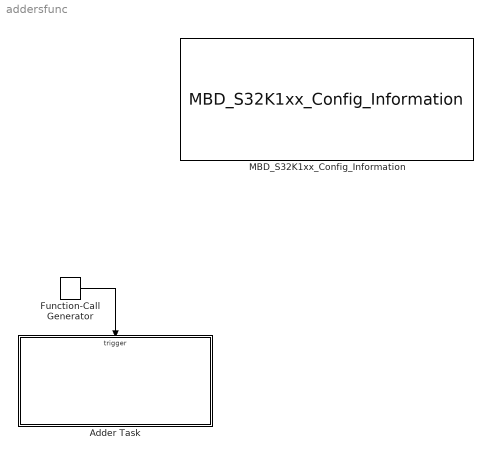
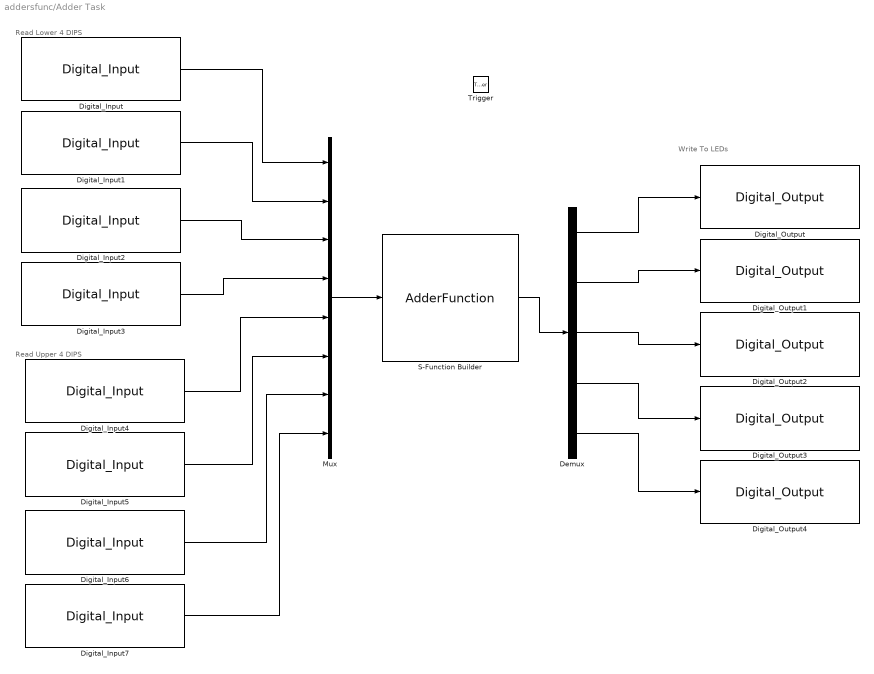
/*
 * Academic License - for use in teaching, academic research, and meeting
 * course requirements at degree granting institutions only.  Not for
 * government, commercial, or other organizational use.
 *
 * File: addersfunc.c
 *
 * Code generated for Simulink model 'addersfunc'.
 *
 * Model version                   : 1.8
 * Simulink Coder version          : 9.3 (R2020a) 18-Nov-2019
 * MBDT for S32K1xx Series Version : 4.1.0 (R2017b-R2019a) 22-Jul-2019
 * C/C++ source code generated on  : Wed Sep 18 11:34:13 2024
 *
 * Target selection: mbd_s32k.tlc
 * Embedded hardware selection: ARM Compatible->ARM Cortex
 * Code generation objective: Traceability
 * Validation result: Not run
 */

#include "addersfunc.h"
#include "addersfunc_private.h"

/* Block signals (default storage) */
B_addersfunc_T addersfunc_B;

/* Real-time model */
RT_MODEL_addersfunc_T addersfunc_M_;
RT_MODEL_addersfunc_T *const addersfunc_M = &addersfunc_M_;

/* Model step function */
void addersfunc_step(void)
{
  /* S-Function (fcncallgen): '<Root>/Function-Call Generator' incorporates:
   *  SubSystem: '<Root>/Adder Task'
   */
  /* S-Function (gpio_s32k_input): '<S1>/Digital_Input' */

  /* GPIPORTE6 signal update */
  addersfunc_B.Digital_Input = (PINS_DRV_ReadPins(PTE) >> 6) & 0x01;

  /* S-Function (gpio_s32k_input): '<S1>/Digital_Input1' */

  /* GPIPORTE7 signal update */
  addersfunc_B.Digital_Input1 = (PINS_DRV_ReadPins(PTE) >> 7) & 0x01;

  /* S-Function (gpio_s32k_input): '<S1>/Digital_Input2' */

  /* GPIPORTE8 signal update */
  addersfunc_B.Digital_Input2 = (PINS_DRV_ReadPins(PTE) >> 8) & 0x01;

  /* S-Function (gpio_s32k_input): '<S1>/Digital_Input3' */

  /* GPIPORTE9 signal update */
  addersfunc_B.Digital_Input3 = (PINS_DRV_ReadPins(PTE) >> 9) & 0x01;

  /* S-Function (gpio_s32k_input): '<S1>/Digital_Input4' */

  /* GPIPORTE10 signal update */
  addersfunc_B.Digital_Input4 = (PINS_DRV_ReadPins(PTE) >> 10) & 0x01;

  /* S-Function (gpio_s32k_input): '<S1>/Digital_Input5' */

  /* GPIPORTE11 signal update */
  addersfunc_B.Digital_Input5 = (PINS_DRV_ReadPins(PTE) >> 11) & 0x01;

  /* S-Function (gpio_s32k_input): '<S1>/Digital_Input6' */

  /* GPIPORTE12 signal update */
  addersfunc_B.Digital_Input6 = (PINS_DRV_ReadPins(PTE) >> 12) & 0x01;

  /* S-Function (gpio_s32k_input): '<S1>/Digital_Input7' */

  /* GPIPORTE13 signal update */
  addersfunc_B.Digital_Input7 = (PINS_DRV_ReadPins(PTE) >> 13) & 0x01;

  /* SignalConversion generated from: '<S1>/S-Function Builder' */
  addersfunc_B.TmpSignalConversionAtSFunctionB[0] = addersfunc_B.Digital_Input;
  addersfunc_B.TmpSignalConversionAtSFunctionB[1] = addersfunc_B.Digital_Input1;
  addersfunc_B.TmpSignalConversionAtSFunctionB[2] = addersfunc_B.Digital_Input2;
  addersfunc_B.TmpSignalConversionAtSFunctionB[3] = addersfunc_B.Digital_Input3;
  addersfunc_B.TmpSignalConversionAtSFunctionB[4] = addersfunc_B.Digital_Input4;
  addersfunc_B.TmpSignalConversionAtSFunctionB[5] = addersfunc_B.Digital_Input5;
  addersfunc_B.TmpSignalConversionAtSFunctionB[6] = addersfunc_B.Digital_Input6;
  addersfunc_B.TmpSignalConversionAtSFunctionB[7] = addersfunc_B.Digital_Input7;

  /* S-Function (AdderFunction): '<S1>/S-Function Builder' */
  AdderFunction_Outputs_wrapper(&addersfunc_B.TmpSignalConversionAtSFunctionB[0],
    &addersfunc_B.SFunctionBuilder[0]);

  /* S-Function (gpio_s32k_output): '<S1>/Digital_Output' */

  /* GPOPORTD0 Data Signal Update */
  if (addersfunc_B.SFunctionBuilder[0]) {
    PINS_DRV_SetPins(PTD, 1UL<<0);
  } else {
    PINS_DRV_ClearPins(PTD, 1UL<<0);
  }

  /* S-Function (gpio_s32k_output): '<S1>/Digital_Output1' */

  /* GPOPORTD1 Data Signal Update */
  if (addersfunc_B.SFunctionBuilder[1]) {
    PINS_DRV_SetPins(PTD, 1UL<<1);
  } else {
    PINS_DRV_ClearPins(PTD, 1UL<<1);
  }

  /* S-Function (gpio_s32k_output): '<S1>/Digital_Output2' */

  /* GPOPORTD2 Data Signal Update */
  if (addersfunc_B.SFunctionBuilder[2]) {
    PINS_DRV_SetPins(PTD, 1UL<<2);
  } else {
    PINS_DRV_ClearPins(PTD, 1UL<<2);
  }

  /* S-Function (gpio_s32k_output): '<S1>/Digital_Output3' */

  /* GPOPORTD3 Data Signal Update */
  if (addersfunc_B.SFunctionBuilder[3]) {
    PINS_DRV_SetPins(PTD, 1UL<<3);
  } else {
    PINS_DRV_ClearPins(PTD, 1UL<<3);
  }

  /* S-Function (gpio_s32k_output): '<S1>/Digital_Output4' */

  /* GPOPORTD4 Data Signal Update */
  if (addersfunc_B.SFunctionBuilder[4]) {
    PINS_DRV_SetPins(PTD, 1UL<<4);
  } else {
    PINS_DRV_ClearPins(PTD, 1UL<<4);
  }

  /* End of Outputs for S-Function (fcncallgen): '<Root>/Function-Call Generator' */
}
